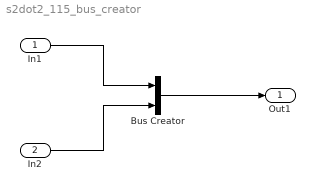
/*
 * File: s2dot2_115_bus_creator.c
 *
 * Code generated for Simulink model 's2dot2_115_bus_creator'.
 *
 * Model version                  : 1.1
 * Simulink Coder version         : 23.2 (R2023b) 01-Aug-2023
 * C/C++ source code generated on : Thu Nov 28 11:33:33 2024
 *
 * Target selection: ert.tlc
 * Embedded hardware selection: Intel->x86-64 (Windows64)
 * Code generation objectives: Unspecified
 * Validation result: Not run
 */

#include "s2dot2_115_bus_creator.h"

/* External inputs (root inport signals with default storage) */
ExtU_s2dot2_115_bus_creator_T s2dot2_115_bus_creator_U;

/* External outputs (root outports fed by signals with default storage) */
ExtY_s2dot2_115_bus_creator_T s2dot2_115_bus_creator_Y;

/* Real-time model */
static RT_MODEL_s2dot2_115_bus_creat_T s2dot2_115_bus_creator_M_;
RT_MODEL_s2dot2_115_bus_creat_T *const s2dot2_115_bus_creator_M =
  &s2dot2_115_bus_creator_M_;

/* Model step function */
void s2dot2_115_bus_creator_step(void)
{
  /* BusCreator: '<Root>/Bus Creator' incorporates:
   *  Inport: '<Root>/In1'
   *  Inport: '<Root>/In2'
   *  Outport: '<Root>/Out1'
   */
  s2dot2_115_bus_creator_Y.Out1.a1 = s2dot2_115_bus_creator_U.In1;
  s2dot2_115_bus_creator_Y.Out1.a2 = s2dot2_115_bus_creator_U.In2;
}
